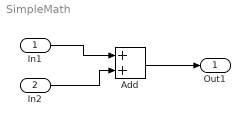
/*
 * Academic License - for use in teaching, academic research, and meeting
 * course requirements at degree granting institutions only.  Not for
 * government, commercial, or other organizational use.
 *
 * File: SimpleMath.c
 *
 * Code generated for Simulink model 'SimpleMath'.
 *
 * Model version                  : 1.6
 * Simulink Coder version         : 9.9 (R2023a) 19-Nov-2022
 * C/C++ source code generated on : Thu Jun 29 18:58:19 2023
 *
 * Target selection: MoTeC.tlc
 * Embedded hardware selection: Freescale->32-bit PowerPC
 * Code generation objectives: Unspecified
 * Validation result: Not run
 */

#include "SimpleMath.h"

/* External inputs (root inport signals with default storage) */
ExtU_SimpleMath_T SimpleMath_U;

/* External outputs (root outports fed by signals with default storage) */
ExtY_SimpleMath_T SimpleMath_Y;

/* Real-time model */
static RT_MODEL_SimpleMath_T SimpleMath_M_;
RT_MODEL_SimpleMath_T *const SimpleMath_M = &SimpleMath_M_;

/* Model step function */
void SimpleMath_step(void)
{
  /* Outport: '<Root>/Out1' incorporates:
   *  Inport: '<Root>/In1'
   *  Inport: '<Root>/In2'
   *  Sum: '<Root>/Add'
   */
  SimpleMath_Y.Out1 = SimpleMath_U.In1 + SimpleMath_U.In2;
}
